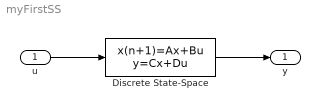
/*
 * File: myFirstSS.c
 *
 * Code generated for Simulink model 'myFirstSS'.
 *
 * Model version                  : 1.29
 * Simulink Coder version         : 25.2 (R2025b) 28-Jul-2025
 * C/C++ source code generated on : Mon Dec 29 08:05:19 2025
 *
 * Target selection: ert.tlc
 * Embedded hardware selection: Intel->x86-64 (Windows64)
 * Code generation objectives: Unspecified
 * Validation result: Not run
 */

#include "myFirstSS.h"

/* Block states (default storage) */
DW_myFirstSS_T myFirstSS_DW;

/* External inputs (root inport signals with default storage) */
ExtU_myFirstSS_T myFirstSS_U;

/* External outputs (root outports fed by signals with default storage) */
ExtY_myFirstSS_T myFirstSS_Y;

/* Real-time model */
static RT_MODEL_myFirstSS_T myFirstSS_M_;
RT_MODEL_myFirstSS_T *const myFirstSS_M = &myFirstSS_M_;

/* Model step function */
void myFirstSS_step(void)
{
  /* Outport: '<Root>/y' incorporates:
   *  DiscreteStateSpace: '<Root>/Discrete State-Space'
   */
  myFirstSS_Y.y = myFirstSS_P.C * myFirstSS_DW.DiscreteStateSpace_DSTATE;

  /* Update for DiscreteStateSpace: '<Root>/Discrete State-Space' incorporates:
   *  Inport: '<Root>/u'
   */
  myFirstSS_DW.DiscreteStateSpace_DSTATE = myFirstSS_P.A *
    myFirstSS_DW.DiscreteStateSpace_DSTATE + myFirstSS_P.B * myFirstSS_U.u;
}
